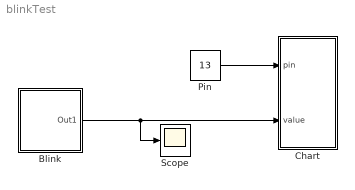
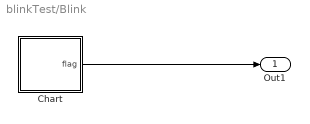
== stateflow chart blinkTest/Chart ==
  (default) -> (junction 1)
  (junction 1) -> (junction 3) : { digitalWrite(pin, value); }
  data: pin input uint8; value input boolean

== stateflow chart blinkTest/Blink/Chart ==
  state on
    en:
    flag = true;
  state off
    en:
    flag = false;
  (default) -> off
  on -> off : [after(1000,tick)]
  off -> on : [after(1000,tick)]
  data: flag output boolean

/*
 * File: blinkTest.c
 *
 * Code generated for Simulink model 'blinkTest'.
 *
 * Model version                  : 1.15
 * Simulink Coder version         : 8.11 (R2016b) 25-Aug-2016
 * C/C++ source code generated on : Mon Aug 03 20:17:04 2020
 *
 * Target selection: ert.tlc
 * Embedded hardware selection: Atmel->AVR
 * Code generation objectives: Unspecified
 * Validation result: Not run
 */

#include "blinkTest.h"
#include "blinkTest_private.h"

/* Block signals (auto storage) */
B_blinkTest_T blinkTest_B;

/* Block states (auto storage) */
DW_blinkTest_T blinkTest_DW;

/* Real-time model */
RT_MODEL_blinkTest_T blinkTest_M_;
RT_MODEL_blinkTest_T *const blinkTest_M = &blinkTest_M_;

/* Model step function */
void blinkTest_step(void)
{
  /* Outputs for Atomic SubSystem: '<Root>/Blink' */
  blinkTest_Blink();

  /* End of Outputs for SubSystem: '<Root>/Blink' */

  /* Chart: '<Root>/Chart' incorporates:
   *  Constant: '<Root>/Pin'
   */
  /* Gateway: Chart */
  /* During: Chart */
  /* Entry Internal: Chart */
  /* Transition: '<S2>:2' */
  /* Transition: '<S2>:4' */
  digitalWrite(13U, blinkTest_B.flag);
}
